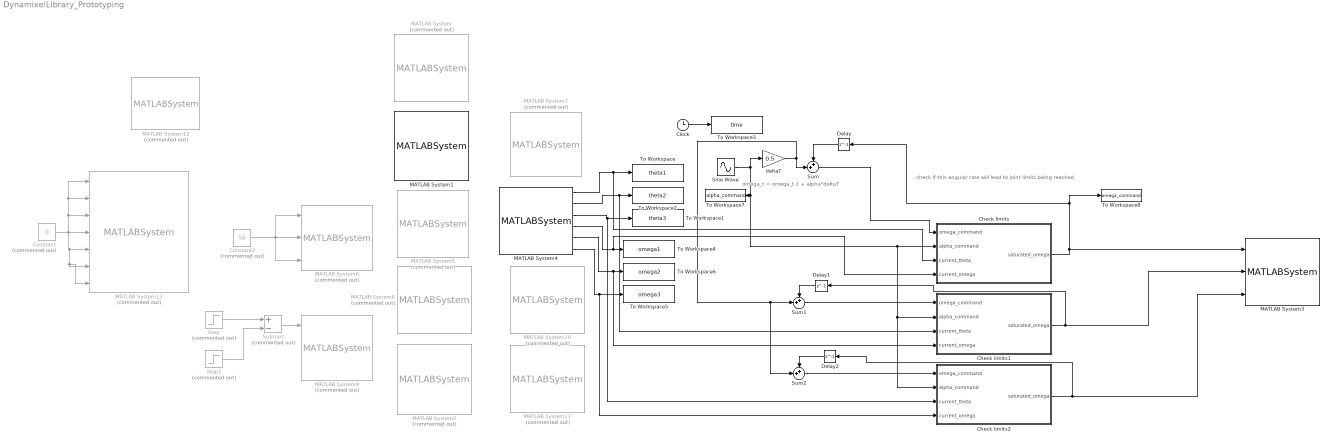
== matlab function DynamixelLibrary_Prototyping/Check limits1 ==
function saturated_omega = check_limits(omega_command, alpha_command, current_theta, current_omega, serverRate, maxOmega)

buffer_angle = 0; % [deg]
next_theta = current_theta + current_omega * (serverRate) + 0.5 * alpha_command * (serverRate) ^2;

if (((next_theta >= pi/2 - buffer_angle*pi/180) && (omega_command > 0)) || ((next_theta <= -pi/2 + buffer_angle*pi/180) && (omega_command < 0)))
    saturated_omega = 0;
elseif omega_command > maxOmega
    saturated_omega = maxOmega;
elseif omega_command < - maxOmega
    saturated_omega = -maxOmega;
else
    saturated_omega = omega_command;
end

== matlab function DynamixelLibrary_Prototyping/Check limits ==
function saturated_omega = check_limits(omega_command, alpha_command, current_theta, current_omega, serverRate, maxOmega)

buffer_angle = 0; % [deg]
next_theta = current_theta + current_omega * (serverRate) + 0.5 * alpha_command * (serverRate) ^2;

if (((next_theta >= pi/2 - buffer_angle*pi/180) && (omega_command > 0)) || ((next_theta <= -pi/2 + buffer_angle*pi/180) && (omega_command < 0)))
    saturated_omega = 0;
elseif omega_command > maxOmega
    saturated_omega = maxOmega;
elseif omega_command < - maxOmega
    saturated_omega = -maxOmega;
else
    saturated_omega = omega_command;
end

== matlab function DynamixelLibrary_Prototyping/Check limits2 ==
function saturated_omega = check_limits(omega_command, alpha_command, current_theta, current_omega, serverRate, maxOmega)

buffer_angle = 0; % [deg]
next_theta = current_theta + current_omega * (serverRate) + 0.5 * alpha_command * (serverRate) ^2;

if (((next_theta >= pi/2 - buffer_angle*pi/180) && (omega_command > 0)) || ((next_theta <= -pi/2 + buffer_angle*pi/180) && (omega_command < 0)))
    saturated_omega = 0;
elseif omega_command > maxOmega
    saturated_omega = maxOmega;
elseif omega_command < - maxOmega
    saturated_omega = -maxOmega;
else
    saturated_omega = omega_command;
end

//
//  DynamixelLibrary_Prototyping.cpp
//
//  Code generation for model "DynamixelLibrary_Prototyping".
//
//  Model version              : 1.181
//  Simulink Coder version : 9.3 (R2020a) 18-Nov-2019
//  C++ source code generated on : Sat May 15 14:47:59 2021
//
//  Target selection: ert.tlc
//  Embedded hardware selection: ARM Compatible->ARM Cortex
//  Code generation objectives:
//     1. Execution efficiency
//     2. RAM efficiency
//  Validation result: Not run


#include "DynamixelLibrary_Prototyping.h"
#include "DynamixelLibrary_Prototyping_private.h"
#include "DynamixelLibrary_Prototyping_dt.h"

// Block signals (default storage)
B_DynamixelLibrary_Prototypin_T DynamixelLibrary_Prototyping_B;

// Block states (default storage)
DW_DynamixelLibrary_Prototypi_T DynamixelLibrary_Prototyping_DW;

// Real-time model
RT_MODEL_DynamixelLibrary_Pro_T DynamixelLibrary_Prototyping_M_ =
  RT_MODEL_DynamixelLibrary_Pro_T();
RT_MODEL_DynamixelLibrary_Pro_T *const DynamixelLibrary_Prototyping_M =
  &DynamixelLibrary_Prototyping_M_;

// Forward declaration for local functions
static void matlabCodegenHandle_matlabCo_o4(ReadArm_Position_Rates_Dynami_T *obj);
static void DynamixelLib_SystemCore_release(const
  MoveArm_Speed_DynamixelLibrar_T *obj);
static void DynamixelLi_SystemCore_delete_o(const
  MoveArm_Speed_DynamixelLibrar_T *obj);
static void matlabCodegenHandle_matlabCod_o(MoveArm_Speed_DynamixelLibrar_T *obj);
static void matlabCodegenHandle_matlabCodeg(InitializeForSpeed_DynamixelL_T *obj);

//
// Output and update for atomic system:
//    '<Root>/Check limits1'
//    '<Root>/Check limits2'
//
void DynamixelLibrary_P_Checklimits1(real_T rtu_omega_command, real_T
  rtu_alpha_command, real_T rtu_current_theta, real_T rtu_current_omega,
  B_Checklimits1_DynamixelLibra_T *localB)
{
  real_T next_theta;
  next_theta = (rtu_current_omega * DynamixelLibrary_Prototyping_P.serverRate +
                rtu_current_theta) + 0.5 * rtu_alpha_command *
    (DynamixelLibrary_Prototyping_P.serverRate *
     DynamixelLibrary_Prototyping_P.serverRate);
  if (((next_theta >= 1.5707963267948966) && (rtu_omega_command > 0.0)) ||
      ((next_theta <= -1.5707963267948966) && (rtu_omega_command < 0.0))) {
    localB->saturated_omega = 0.0;
  } else if (rtu_omega_command > DynamixelLibrary_Prototyping_P.maxOmega) {
    localB->saturated_omega = DynamixelLibrary_Prototyping_P.maxOmega;
  } else if (rtu_omega_command < -DynamixelLibrary_Prototyping_P.maxOmega) {
    localB->saturated_omega = -DynamixelLibrary_Prototyping_P.maxOmega;
  } else {
    localB->saturated_omega = rtu_omega_command;
  }
}

static void matlabCodegenHandle_matlabCo_o4(ReadArm_Position_Rates_Dynami_T *obj)
{
  if (!obj->matlabCodegenIsDeleted) {
    obj->matlabCodegenIsDeleted = true;
  }
}

static void DynamixelLib_SystemCore_release(const
  MoveArm_Speed_DynamixelLibrar_T *obj)
{
  if ((obj->isInitialized == 1) && obj->isSetupComplete) {
    command_dynamixel_speed(0.0, 0.0, 0.0);
  }
}

static void DynamixelLi_SystemCore_delete_o(const
  MoveArm_Speed_DynamixelLibrar_T *obj)
{
  DynamixelLib_SystemCore_release(obj);
}

static void matlabCodegenHandle_matlabCod_o(MoveArm_Speed_DynamixelLibrar_T *obj)
{
  if (!obj->matlabCodegenIsDeleted) {
    obj->matlabCodegenIsDeleted = true;
    DynamixelLi_SystemCore_delete_o(obj);
  }
}

static void matlabCodegenHandle_matlabCodeg(InitializeForSpeed_DynamixelL_T *obj)
{
  if (!obj->matlabCodegenIsDeleted) {
    obj->matlabCodegenIsDeleted = true;
  }
}

// Model step function
void DynamixelLibrary_Prototyping_step(void)
{
  {
    real_T sampleTime;
    real_T rtb_Sum;
    real_T rtb_deltaT;

    // Sin: '<Root>/Sine Wave'
    if (DynamixelLibrary_Prototyping_DW.systemEnable != 0) {
      rtb_deltaT = DynamixelLibrary_Prototyping_P.SineWave_Freq *
        ((DynamixelLibrary_Prototyping_M->Timing.clockTick1) * 0.5);
      DynamixelLibrary_Prototyping_DW.lastSin = sin(rtb_deltaT);
      DynamixelLibrary_Prototyping_DW.lastCos = cos(rtb_deltaT);
      DynamixelLibrary_Prototyping_DW.systemEnable = 0;
    }

    DynamixelLibrary_Prototyping_B.SineWave =
      ((DynamixelLibrary_Prototyping_DW.lastSin *
        DynamixelLibrary_Prototyping_P.SineWave_PCos +
        DynamixelLibrary_Prototyping_DW.lastCos *
        DynamixelLibrary_Prototyping_P.SineWave_PSin) *
       DynamixelLibrary_Prototyping_P.SineWave_HCos +
       (DynamixelLibrary_Prototyping_DW.lastCos *
        DynamixelLibrary_Prototyping_P.SineWave_PCos -
        DynamixelLibrary_Prototyping_DW.lastSin *
        DynamixelLibrary_Prototyping_P.SineWave_PSin) *
       DynamixelLibrary_Prototyping_P.SineWave_Hsin) *
      DynamixelLibrary_Prototyping_P.SineWave_Amp +
      DynamixelLibrary_Prototyping_P.SineWave_Bias;

    // End of Sin: '<Root>/Sine Wave'

    // Gain: '<Root>/deltaT'
    rtb_deltaT = DynamixelLibrary_Prototyping_P.deltaT_Gain *
      DynamixelLibrary_Prototyping_B.SineWave;

    // Sum: '<Root>/Sum' incorporates:
    //   Delay: '<Root>/Delay'

    rtb_Sum = DynamixelLibrary_Prototyping_DW.Delay_DSTATE + rtb_deltaT;

    // MATLABSystem: '<Root>/MATLAB System4'
    if (DynamixelLibrary_Prototyping_DW.obj_o.SampleTime !=
        DynamixelLibrary_Prototyping_P.MATLABSystem4_SampleTime) {
      if (((!rtIsInf(DynamixelLibrary_Prototyping_P.MATLABSystem4_SampleTime)) &&
           (!rtIsNaN(DynamixelLibrary_Prototyping_P.MATLABSystem4_SampleTime))) ||
          rtIsInf(DynamixelLibrary_Prototyping_P.MATLABSystem4_SampleTime)) {
        sampleTime = DynamixelLibrary_Prototyping_P.MATLABSystem4_SampleTime;
      }

      DynamixelLibrary_Prototyping_DW.obj_o.SampleTime = sampleTime;
    }

    DynamixelLibrary_Prototyping_B.MATLABSystem4_o1 = 0.0;
    DynamixelLibrary_Prototyping_B.MATLABSystem4_o2 = 0.0;
    DynamixelLibrary_Prototyping_B.MATLABSystem4_o3 = 0.0;
    DynamixelLibrary_Prototyping_B.MATLABSystem4_o4 = 0.0;
    DynamixelLibrary_Prototyping_B.MATLABSystem4_o5 = 0.0;
    DynamixelLibrary_Prototyping_B.MATLABSystem4_o6 = 0.0;
    read_dynamixel_position(&DynamixelLibrary_Prototyping_B.MATLABSystem4_o1,
      &DynamixelLibrary_Prototyping_B.MATLABSystem4_o2,
      &DynamixelLibrary_Prototyping_B.MATLABSystem4_o3,
      &DynamixelLibrary_Prototyping_B.MATLABSystem4_o4,
      &DynamixelLibrary_Prototyping_B.MATLABSystem4_o5,
      &DynamixelLibrary_Prototyping_B.MATLABSystem4_o6);

    // End of MATLABSystem: '<Root>/MATLAB System4'

    // MATLAB Function: '<Root>/Check limits'
    sampleTime = (DynamixelLibrary_Prototyping_B.MATLABSystem4_o4 *
                  DynamixelLibrary_Prototyping_P.serverRate +
                  DynamixelLibrary_Prototyping_B.MATLABSystem4_o1) + 0.5 *
      DynamixelLibrary_Prototyping_B.SineWave *
      (DynamixelLibrary_Prototyping_P.serverRate *
       DynamixelLibrary_Prototyping_P.serverRate);
    if (((sampleTime >= 1.5707963267948966) && (rtb_Sum > 0.0)) || ((sampleTime <=
          -1.5707963267948966) && (rtb_Sum < 0.0))) {
      DynamixelLibrary_Prototyping_B.saturated_omega = 0.0;
    } else if (rtb_Sum > DynamixelLibrary_Prototyping_P.maxOmega) {
      DynamixelLibrary_Prototyping_B.saturated_omega =
        DynamixelLibrary_Prototyping_P.maxOmega;
    } else if (rtb_Sum < -DynamixelLibrary_Prototyping_P.maxOmega) {
      DynamixelLibrary_Prototyping_B.saturated_omega =
        -DynamixelLibrary_Prototyping_P.maxOmega;
    } else {
      DynamixelLibrary_Prototyping_B.saturated_omega = rtb_Sum;
    }

    // End of MATLAB Function: '<Root>/Check limits'

    // MATLAB Function: '<Root>/Check limits1' incorporates:
    //   Delay: '<Root>/Delay1'
    //   Sum: '<Root>/Sum1'

    DynamixelLibrary_P_Checklimits1
      (DynamixelLibrary_Prototyping_DW.Delay1_DSTATE + rtb_deltaT,
       DynamixelLibrary_Prototyping_B.SineWave,
       DynamixelLibrary_Prototyping_B.MATLABSystem4_o2,
       DynamixelLibrary_Prototyping_B.MATLABSystem4_o5,
       &DynamixelLibrary_Prototyping_B.sf_Checklimits1);

    // MATLAB Function: '<Root>/Check limits2' incorporates:
    //   Delay: '<Root>/Delay2'
    //   Sum: '<Root>/Sum2'

    DynamixelLibrary_P_Checklimits1
      (DynamixelLibrary_Prototyping_DW.Delay2_DSTATE + rtb_deltaT,
       DynamixelLibrary_Prototyping_B.SineWave,
       DynamixelLibrary_Prototyping_B.MATLABSystem4_o3,
       DynamixelLibrary_Prototyping_B.MATLABSystem4_o6,
       &DynamixelLibrary_Prototyping_B.sf_Checklimits2);

    // MATLABSystem: '<Root>/MATLAB System3'
    command_dynamixel_speed(DynamixelLibrary_Prototyping_B.saturated_omega,
      DynamixelLibrary_Prototyping_B.sf_Checklimits1.saturated_omega,
      DynamixelLibrary_Prototyping_B.sf_Checklimits2.saturated_omega);

    // Clock: '<Root>/Clock'
    DynamixelLibrary_Prototyping_B.Clock =
      DynamixelLibrary_Prototyping_M->Timing.t[0];

    // MATLABSystem: '<Root>/MATLAB System1'
    if (DynamixelLibrary_Prototyping_DW.obj.P_GAIN !=
        DynamixelLibrary_Prototyping_P.MATLABSystem1_P_GAIN) {
      DynamixelLibrary_Prototyping_DW.obj.P_GAIN =
        DynamixelLibrary_Prototyping_P.MATLABSystem1_P_GAIN;
    }

    if (DynamixelLibrary_Prototyping_DW.obj.I_GAIN !=
        DynamixelLibrary_Prototyping_P.MATLABSystem1_I_GAIN) {
      DynamixelLibrary_Prototyping_DW.obj.I_GAIN =
        DynamixelLibrary_Prototyping_P.MATLABSystem1_I_GAIN;
    }

    if (DynamixelLibrary_Prototyping_DW.obj.VELOCITY_LIMIT !=
        DynamixelLibrary_Prototyping_P.MATLABSystem1_VELOCITY_LIMIT) {
      DynamixelLibrary_Prototyping_DW.obj.VELOCITY_LIMIT =
        DynamixelLibrary_Prototyping_P.MATLABSystem1_VELOCITY_LIMIT;
    }

    if (DynamixelLibrary_Prototyping_DW.obj.ACCELERATION_TIME !=
        DynamixelLibrary_Prototyping_P.MATLABSystem1_ACCELERATION_TIME) {
      DynamixelLibrary_Prototyping_DW.obj.ACCELERATION_TIME =
        DynamixelLibrary_Prototyping_P.MATLABSystem1_ACCELERATION_TIME;
    }

    // End of MATLABSystem: '<Root>/MATLAB System1'
  }

  {
    real_T HoldSine;

    // Update for Delay: '<Root>/Delay'
    DynamixelLibrary_Prototyping_DW.Delay_DSTATE =
      DynamixelLibrary_Prototyping_B.saturated_omega;

    // Update for Sin: '<Root>/Sine Wave'
    HoldSine = DynamixelLibrary_Prototyping_DW.lastSin;
    DynamixelLibrary_Prototyping_DW.lastSin =
      DynamixelLibrary_Prototyping_DW.lastSin *
      DynamixelLibrary_Prototyping_P.SineWave_HCos +
      DynamixelLibrary_Prototyping_DW.lastCos *
      DynamixelLibrary_Prototyping_P.SineWave_Hsin;
    DynamixelLibrary_Prototyping_DW.lastCos =
      DynamixelLibrary_Prototyping_DW.lastCos *
      DynamixelLibrary_Prototyping_P.SineWave_HCos - HoldSine *
      DynamixelLibrary_Prototyping_P.SineWave_Hsin;

    // Update for Delay: '<Root>/Delay1'
    DynamixelLibrary_Prototyping_DW.Delay1_DSTATE =
      DynamixelLibrary_Prototyping_B.sf_Checklimits1.saturated_omega;

    // Update for Delay: '<Root>/Delay2'
    DynamixelLibrary_Prototyping_DW.Delay2_DSTATE =
      DynamixelLibrary_Prototyping_B.sf_Checklimits2.saturated_omega;
  }

  // External mode
  rtExtModeUploadCheckTrigger(2);

  {                                    // Sample time: [0.0s, 0.0s]
    rtExtModeUpload(0, (real_T)DynamixelLibrary_Prototyping_M->Timing.t[0]);
  }

  {                                    // Sample time: [0.5s, 0.0s]
    rtExtModeUpload(1, (real_T)
                    ((DynamixelLibrary_Prototyping_M->Timing.clockTick1) * 0.5));
  }

  // signal main to stop simulation
  {                                    // Sample time: [0.0s, 0.0s]
    if ((rtmGetTFinal(DynamixelLibrary_Prototyping_M)!=-1) &&
        !((rtmGetTFinal(DynamixelLibrary_Prototyping_M)-
           DynamixelLibrary_Prototyping_M->Timing.t[0]) >
          DynamixelLibrary_Prototyping_M->Timing.t[0] * (DBL_EPSILON))) {
      rtmSetErrorStatus(DynamixelLibrary_Prototyping_M, "Simulation finished");
    }

    if (rtmGetStopRequested(DynamixelLibrary_Prototyping_M)) {
      rtmSetErrorStatus(DynamixelLibrary_Prototyping_M, "Simulation finished");
    }
  }

  // Update absolute time for base rate
  // The "clockTick0" counts the number of times the code of this task has
  //  been executed. The absolute time is the multiplication of "clockTick0"
  //  and "Timing.stepSize0". Size of "clockTick0" ensures timer will not
  //  overflow during the application lifespan selected.

  DynamixelLibrary_Prototyping_M->Timing.t[0] =
    ((time_T)(++DynamixelLibrary_Prototyping_M->Timing.clockTick0)) *
    DynamixelLibrary_Prototyping_M->Timing.stepSize0;

  {
    // Update absolute timer for sample time: [0.5s, 0.0s]
    // The "clockTick1" counts the number of times the code of this task has
    //  been executed. The resolution of this integer timer is 0.5, which is the step size
    //  of the task. Size of "clockTick1" ensures timer will not overflow during the
    //  application lifespan selected.

    DynamixelLibrary_Prototyping_M->Timing.clockTick1++;
  }
}
